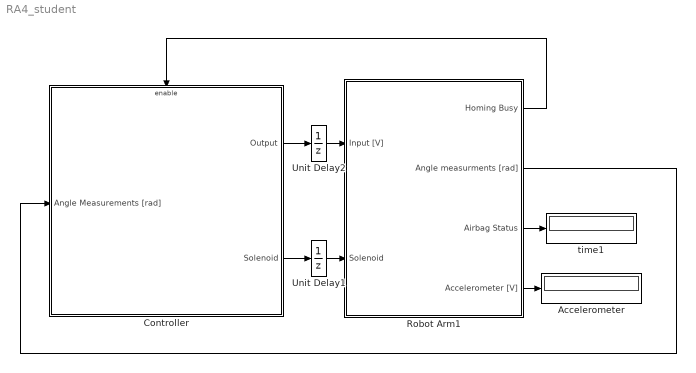
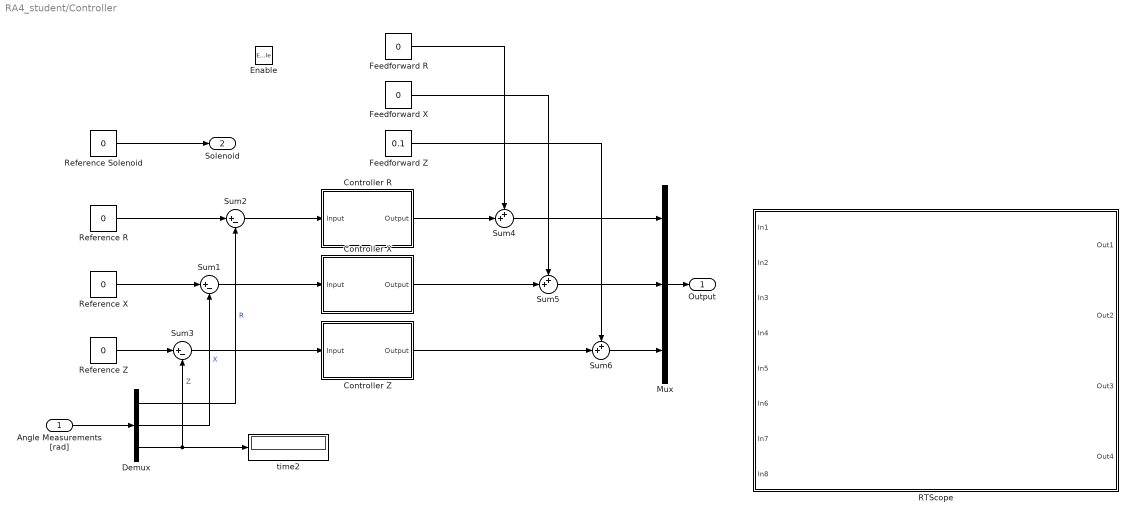
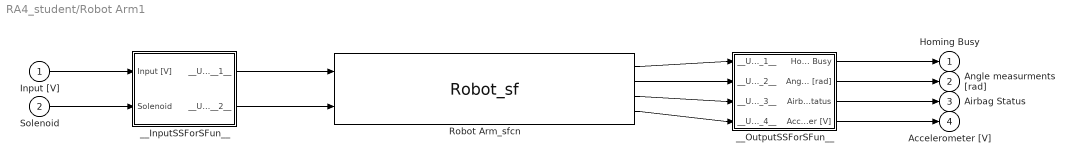
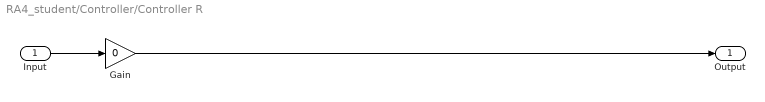
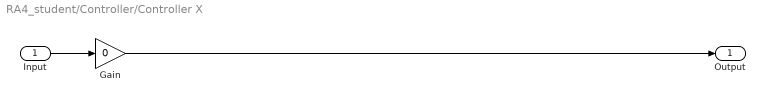
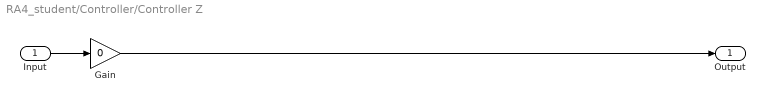
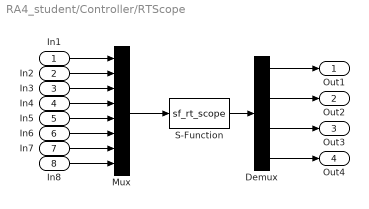
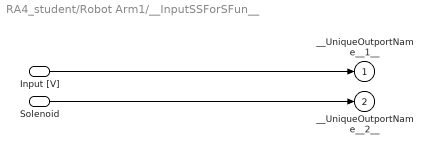
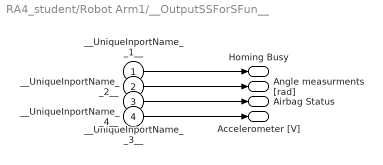
/*
 * RA4_student.c
 *
 * Academic License - for use in teaching, academic research, and meeting
 * course requirements at degree granting institutions only.  Not for
 * government, commercial, or other organizational use.
 *
 * Code generation for model "RA4_student".
 *
 * Model version              : 1.904
 * Simulink Coder version : 8.9 (R2015b) 13-Aug-2015
 * C source code generated on : Thu Apr 21 18:56:05 2016
 *
 * Target selection: ectarget.tlc
 * Note: GRT includes extra infrastructure and instrumentation for prototyping
 * Embedded hardware selection: 32-bit Generic
 * Code generation objectives: Unspecified
 * Validation result: Not run
 */

#include "RA4_student.h"
#include "RA4_student_private.h"
#include "RA4_student_dt.h"
#undef S_FUNCTION_NAME
#if !defined(RTW_GENERATED_SFCN_TUNABLE_PRMS_Robot_sf)
#define RTW_GENERATED_SFCN_TUNABLE_PRMS_Robot_sf
#endif

#include "Robot_sf.h"

const real_T RA4_student_RGND = 0.0;   /* real_T ground */

/* Block signals (auto storage) */
B_RA4_student_T RA4_student_B;

/* Block states (auto storage) */
DW_RA4_student_T RA4_student_DW;

/* Real-time model */
RT_MODEL_RA4_student_T RA4_student_M_;
RT_MODEL_RA4_student_T *const RA4_student_M = &RA4_student_M_;

/* Model output function */
void RA4_student_output(void)
{
  /* Reset subsysRan breadcrumbs */
  srClearBC(RA4_student_DW.Controller_SubsysRanBC);

  /* UnitDelay: '<Root>/Unit Delay2' */
  RA4_student_B.UnitDelay2[0] = RA4_student_DW.UnitDelay2_DSTATE[0];
  RA4_student_B.UnitDelay2[1] = RA4_student_DW.UnitDelay2_DSTATE[1];
  RA4_student_B.UnitDelay2[2] = RA4_student_DW.UnitDelay2_DSTATE[2];

  /* UnitDelay: '<Root>/Unit Delay1' */
  RA4_student_B.UnitDelay1 = RA4_student_DW.UnitDelay1_DSTATE;

  /* RTW Generated Level2 S-Function Block: '<S2>/Robot Arm_sfcn' (Robot_sf) */
  {
    SimStruct *rts = RA4_student_M->childSfunctions[1];
    sfcnOutputs(rts, 0);
  }

  /* Outputs for Enabled SubSystem: '<Root>/Controller' incorporates:
   *  EnablePort: '<S1>/Enable'
   */
  if (RA4_student_B.RobotArm_sfcn_o1 > 0.0) {
    if (!RA4_student_DW.Controller_MODE) {
      RA4_student_DW.Controller_MODE = true;
    }
  } else {
    if (RA4_student_DW.Controller_MODE) {
      RA4_student_DW.Controller_MODE = false;
    }
  }

  if (RA4_student_DW.Controller_MODE) {
    /* Sum: '<S1>/Sum4' incorporates:
     *  Constant: '<S1>/Feedforward R'
     *  Constant: '<S1>/Reference R'
     *  Gain: '<S3>/Gain'
     *  Sum: '<S1>/Sum2'
     */
    RA4_student_B.Sum4 = (RA4_student_P.ReferenceR_Value -
                          RA4_student_B.RobotArm_sfcn_o2[0]) *
      RA4_student_P.Gain_Gain + RA4_student_P.FeedforwardR_Value;

    /* Sum: '<S1>/Sum5' incorporates:
     *  Constant: '<S1>/Feedforward X'
     *  Constant: '<S1>/Reference X'
     *  Gain: '<S4>/Gain'
     *  Sum: '<S1>/Sum1'
     */
    RA4_student_B.Sum5 = (RA4_student_P.ReferenceX_Value -
                          RA4_student_B.RobotArm_sfcn_o2[1]) *
      RA4_student_P.Gain_Gain_e + RA4_student_P.FeedforwardX_Value;

    /* Sum: '<S1>/Sum6' incorporates:
     *  Constant: '<S1>/Feedforward Z'
     *  Constant: '<S1>/Reference Z'
     *  Gain: '<S5>/Gain'
     *  Sum: '<S1>/Sum3'
     */
    RA4_student_B.Sum6 = (RA4_student_P.ReferenceZ_Value -
                          RA4_student_B.RobotArm_sfcn_o2[2]) *
      RA4_student_P.Gain_Gain_l + RA4_student_P.FeedforwardZ_Value;

    /* Constant: '<S1>/Reference Solenoid' */
    RA4_student_B.ReferenceSolenoid = RA4_student_P.ReferenceSolenoid_Value;

    /* Level2 S-Function Block: '<S6>/S-Function' (sf_rt_scope) */
    {
      SimStruct *rts = RA4_student_M->childSfunctions[0];
      sfcnOutputs(rts, 0);
    }

    srUpdateBC(RA4_student_DW.Controller_SubsysRanBC);
  }

  /* End of Outputs for SubSystem: '<Root>/Controller' */
}

/* Model update function */
void RA4_student_update(void)
{
  /* Update for UnitDelay: '<Root>/Unit Delay2' */
  RA4_student_DW.UnitDelay2_DSTATE[0] = RA4_student_B.Sum4;
  RA4_student_DW.UnitDelay2_DSTATE[1] = RA4_student_B.Sum5;
  RA4_student_DW.UnitDelay2_DSTATE[2] = RA4_student_B.Sum6;

  /* Update for UnitDelay: '<Root>/Unit Delay1' */
  RA4_student_DW.UnitDelay1_DSTATE = RA4_student_B.ReferenceSolenoid;

  /* RTW Generated Level2 S-Function Block: '<S2>/Robot Arm_sfcn' (Robot_sf) */
  {
    SimStruct *rts = RA4_student_M->childSfunctions[1];
    sfcnUpdate(rts, 0);
    if (ssGetErrorStatus(rts) != (NULL))
      return;
  }

  /* Update absolute time for base rate */
  /* The "clockTick0" counts the number of times the code of this task has
   * been executed. The absolute time is the multiplication of "clockTick0"
   * and "Timing.stepSize0". Size of "clockTick0" ensures timer will not
   * overflow during the application lifespan selected.
   * Timer of this task consists of two 32 bit unsigned integers.
   * The two integers represent the low bits Timing.clockTick0 and the high bits
   * Timing.clockTickH0. When the low bit overflows to 0, the high bits increment.
   */
  if (!(++RA4_student_M->Timing.clockTick0)) {
    ++RA4_student_M->Timing.clockTickH0;
  }

  RA4_student_M->Timing.t[0] = RA4_student_M->Timing.clockTick0 *
    RA4_student_M->Timing.stepSize0 + RA4_student_M->Timing.clockTickH0 *
    RA4_student_M->Timing.stepSize0 * 4294967296.0;

  {
    /* Update absolute timer for sample time: [0.000244140625s, 0.0s] */
    /* The "clockTick1" counts the number of times the code of this task has
     * been executed. The absolute time is the multiplication of "clockTick1"
     * and "Timing.stepSize1". Size of "clockTick1" ensures timer will not
     * overflow during the application lifespan selected.
     * Timer of this task consists of two 32 bit unsigned integers.
     * The two integers represent the low bits Timing.clockTick1 and the high bits
     * Timing.clockTickH1. When the low bit overflows to 0, the high bits increment.
     */
    if (!(++RA4_student_M->Timing.clockTick1)) {
      ++RA4_student_M->Timing.clockTickH1;
    }

    RA4_student_M->Timing.t[1] = RA4_student_M->Timing.clockTick1 *
      RA4_student_M->Timing.stepSize1 + RA4_student_M->Timing.clockTickH1 *
      RA4_student_M->Timing.stepSize1 * 4294967296.0;
  }
}
